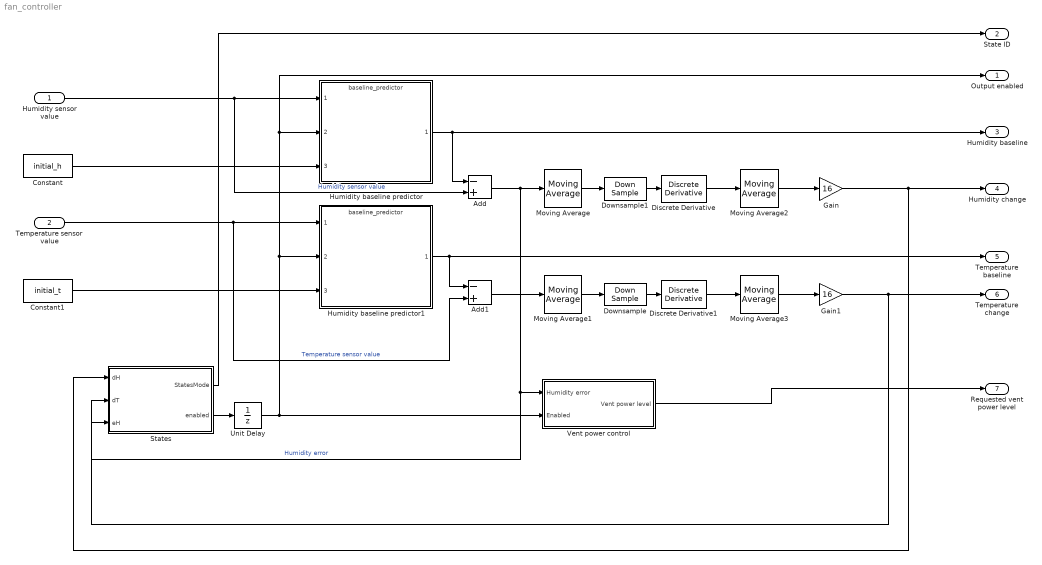
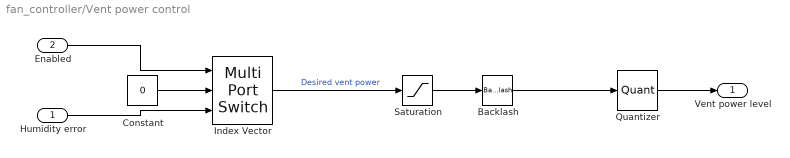
== stateflow chart fan_controller/States ==
  state Stopping
    entry: enabled=0
  state Detected
    entry: enabled=1
  state Stable
    entry: enabled=1
  state OFF
    entry: enabled=0
  Stopping -> OFF
  Detected -> OFF [order 1] : [dH <  -5]
  Stable -> Stopping : [eH < 8]
  (default) -> OFF
  Detected -> Stable [order 2] : [eH > 10]
  OFF -> Detected : [dH > 4]
  data: dH input; dT input; StatesMode output Enum: StatesModeType; enabled output; eH input

//
// Academic License - for use in teaching, academic research, and meeting
// course requirements at degree granting institutions only.  Not for
// government, commercial, or other organizational use.
//
// File: fan_controller.cpp
//
// Code generated for Simulink model 'fan_controller'.
//
// Model version                  : 1.7
// Simulink Coder version         : 9.3 (R2020a) 18-Nov-2019
// C/C++ source code generated on : Sun Nov 28 11:11:36 2021
//
// Target selection: ert.tlc
// Embedded hardware selection: Custom Processor->Custom Processor
// Code generation objectives: Unspecified
// Validation result: Not run
//
#include "fan_controller.h"
#include "fan_controller_private.h"
#include "rt_roundd_snf.h"

void fan_controllerModelClass::fan_controll_SystemCore_release
  (dsp_simulink_MovingAverage_fa_T *obj)
{
  g_dsp_private_SlidingWindowAv_T *obj_0;
  if ((obj->isInitialized == 1) && obj->isSetupComplete) {
    obj_0 = obj->pStatistic;
    if (obj_0->isInitialized == 1) {
      obj_0->isInitialized = 2;
    }

    obj->NumChannels = -1;
  }
}

void fan_controllerModelClass::fan_controlle_SystemCore_delete
  (dsp_simulink_MovingAverage_fa_T *obj)
{
  fan_controll_SystemCore_release(obj);
}

void fan_controllerModelClass::matlabCodegenHandle_matlabCodeg
  (dsp_simulink_MovingAverage_fa_T *obj)
{
  if (!obj->matlabCodegenIsDeleted) {
    obj->matlabCodegenIsDeleted = true;
    fan_controlle_SystemCore_delete(obj);
  }
}

//
// System initialize for atomic system:
//    synthesized block
//    synthesized block
//    synthesized block
//    synthesized block
//
void fan_controllerModelClass::fan_control_MovingAverage3_Init
  (DW_MovingAverage3_fan_control_T *localDW)
{
  // Start for MATLABSystem: '<Root>/Moving Average3'
  localDW->obj.matlabCodegenIsDeleted = false;
  localDW->objisempty = true;
  localDW->obj.isInitialized = 1;
  localDW->obj.NumChannels = 1;
  localDW->gobj_2.isInitialized = 0;
  localDW->obj.pStatistic = &localDW->gobj_2;
  localDW->obj.isSetupComplete = true;
  localDW->obj.TunablePropsChanged = false;

  // InitializeConditions for MATLABSystem: '<Root>/Moving Average3'
  if (localDW->obj.pStatistic->isInitialized == 1) {
    localDW->obj.pStatistic->pCumSum = 0.0;
    std::memset(&localDW->obj.pStatistic->pCumSumRev[0], 0, 15U * sizeof(real_T));
    localDW->obj.pStatistic->pCumRevIndex = 1.0;
  }

  // End of InitializeConditions for MATLABSystem: '<Root>/Moving Average3'
}

//
// Output and update for atomic system:
//    synthesized block
//    synthesized block
//    synthesized block
//    synthesized block
//
void fan_controllerModelClass::fan_controller_MovingAverage3(real_T rtu_0,
  B_MovingAverage3_fan_controll_T *localB, DW_MovingAverage3_fan_control_T
  *localDW)
{
  real_T cumRevIndex;
  real_T csum;
  real_T csumrev[15];
  real_T z;
  int32_T z_tmp;

  // MATLABSystem: '<Root>/Moving Average3'
  if (localDW->obj.TunablePropsChanged) {
    localDW->obj.TunablePropsChanged = false;
  }

  if (localDW->obj.pStatistic->isInitialized != 1) {
    localDW->obj.pStatistic->isSetupComplete = false;
    localDW->obj.pStatistic->isInitialized = 1;
    localDW->obj.pStatistic->pCumSum = 0.0;
    localDW->obj.pStatistic->pCumRevIndex = 1.0;
    localDW->obj.pStatistic->isSetupComplete = true;
    localDW->obj.pStatistic->pCumSum = 0.0;
    std::memset(&localDW->obj.pStatistic->pCumSumRev[0], 0, 15U * sizeof(real_T));
    localDW->obj.pStatistic->pCumRevIndex = 1.0;
  }

  cumRevIndex = localDW->obj.pStatistic->pCumRevIndex;
  csum = localDW->obj.pStatistic->pCumSum;
  for (z_tmp = 0; z_tmp < 15; z_tmp++) {
    csumrev[z_tmp] = localDW->obj.pStatistic->pCumSumRev[z_tmp];
  }

  csum += rtu_0;
  z_tmp = static_cast<int32_T>(cumRevIndex) - 1;
  z = csumrev[z_tmp] + csum;
  csumrev[z_tmp] = rtu_0;
  if (cumRevIndex != 15.0) {
    cumRevIndex++;
  } else {
    cumRevIndex = 1.0;
    csum = 0.0;
    for (z_tmp = 13; z_tmp >= 0; z_tmp--) {
      csumrev[z_tmp] += csumrev[z_tmp + 1];
    }
  }

  localDW->obj.pStatistic->pCumSum = csum;
  std::memcpy(&localDW->obj.pStatistic->pCumSumRev[0], &csumrev[0], 15U * sizeof
              (real_T));
  localDW->obj.pStatistic->pCumRevIndex = cumRevIndex;
  localB->MovingAverage3 = z / 16.0;

  // End of MATLABSystem: '<Root>/Moving Average3'
}

//
// Termination for atomic system:
//    synthesized block
//    synthesized block
//    synthesized block
//    synthesized block
//
void fan_controllerModelClass::fan_control_MovingAverage3_Term
  (DW_MovingAverage3_fan_control_T *localDW)
{
  // Terminate for MATLABSystem: '<Root>/Moving Average3'
  matlabCodegenHandle_matlabCodeg(&localDW->obj);
}

// Model step function
void fan_controllerModelClass::step()
{
  // local block i/o variables
  real_T rtb_Humidityerror;
  real_T rtb_Diff;
  real_T rtb_Add1;
  real_T rtb_Diff_l;
  real_T rtb_Desiredventpower;
  real_T rtb_TSamp;
  real_T rtb_Gain;
  real_T rtb_TSamp_g;
  int32_T rtb_enabled;

  // Outport: '<Root>/Output enabled' incorporates:
  //   UnitDelay: '<Root>/Unit Delay'

  fan_controller_Y.Outputenabled = fan_controller_DW.UnitDelay_DSTATE;

  // ModelReference: '<Root>/Humidity baseline predictor' incorporates:
  //   Constant: '<Root>/Constant'
  //   Inport: '<Root>/Humidity sensor value'
  //   Outport: '<Root>/Humidity baseline'
  //   UnitDelay: '<Root>/Unit Delay'

  Humidity_baseline_prMDLOBJ1.step(&fan_controller_U.Humiditysensorvalue,
    &fan_controller_DW.UnitDelay_DSTATE, &fan_controller_P.Constant_Value_f,
    &fan_controller_Y.Humiditybaseline);

  // Sum: '<Root>/Add' incorporates:
  //   Inport: '<Root>/Humidity sensor value'
  //   Outport: '<Root>/Humidity baseline'

  rtb_Humidityerror = fan_controller_U.Humiditysensorvalue -
    fan_controller_Y.Humiditybaseline;
  fan_controller_MovingAverage3(rtb_Humidityerror,
    &fan_controller_B.MovingAverage, &fan_controller_DW.MovingAverage);

  // DownSample: '<Root>/Downsample1'
  if (fan_controller_DW.Downsample1_Count == 0) {
    rtb_Desiredventpower = fan_controller_B.MovingAverage.MovingAverage3;
  } else {
    rtb_Desiredventpower = fan_controller_DW.Downsample1_Buffer;
  }

  // End of DownSample: '<Root>/Downsample1'

  // SampleTimeMath: '<S1>/TSamp'
  //
  //  About '<S1>/TSamp':
  //   y = u * K where K = 1 / ( w * Ts )
  //   Multiplication by K = weightedTsampQuantized is being
  //   done implicitly by changing the scaling of the input signal.
  //   No work needs to be done here.  Downstream blocks may need
  //   to do work to handle the scaling of the output; this happens
  //   automatically.

  rtb_TSamp = rtb_Desiredventpower;

  // Sum: '<S1>/Diff' incorporates:
  //   SampleTimeMath: '<S1>/TSamp'
  //   UnitDelay: '<S1>/UD'
  //
  //  About '<S1>/TSamp':
  //   y = u * K where K = 1 / ( w * Ts )
  //   Multiplication by K = weightedTsampQuantized is being
  //   done implicitly by changing the scaling of the input signal.
  //   No work needs to be done here.  Downstream blocks may need
  //   to do work to handle the scaling of the output; this happens
  //   automatically.
  //
  //  Block description for '<S1>/Diff':
  //
  //   Add in CPU
  //
  //  Block description for '<S1>/UD':
  //
  //   Store in Global RAM

  rtb_Diff = rtb_Desiredventpower - fan_controller_DW.UD_DSTATE;
  fan_controller_MovingAverage3(rtb_Diff, &fan_controller_B.MovingAverage2,
    &fan_controller_DW.MovingAverage2);

  // Gain: '<Root>/Gain'
  rtb_Gain = fan_controller_P.Gain_Gain *
    fan_controller_B.MovingAverage2.MovingAverage3;

  // Outport: '<Root>/Humidity change'
  fan_controller_Y.Humiditychange = rtb_Gain;

  // ModelReference: '<Root>/Humidity baseline predictor1' incorporates:
  //   Constant: '<Root>/Constant1'
  //   Inport: '<Root>/Temperature sensor value'
  //   Outport: '<Root>/Temperature baseline'
  //   UnitDelay: '<Root>/Unit Delay'

  Humidity_baseline_prMDLOBJ2.step(&fan_controller_U.Temperaturesensorvalue,
    &fan_controller_DW.UnitDelay_DSTATE, &fan_controller_P.Constant1_Value,
    &fan_controller_Y.Temperaturebaseline);

  // Sum: '<Root>/Add1' incorporates:
  //   Inport: '<Root>/Temperature sensor value'
  //   Outport: '<Root>/Temperature baseline'

  rtb_Add1 = fan_controller_U.Temperaturesensorvalue -
    fan_controller_Y.Temperaturebaseline;
  fan_controller_MovingAverage3(rtb_Add1, &fan_controller_B.MovingAverage1,
    &fan_controller_DW.MovingAverage1);

  // DownSample: '<Root>/Downsample'
  if (fan_controller_DW.Downsample_Count == 0) {
    rtb_Desiredventpower = fan_controller_B.MovingAverage1.MovingAverage3;
  } else {
    rtb_Desiredventpower = fan_controller_DW.Downsample_Buffer;
  }

  // End of DownSample: '<Root>/Downsample'

  // SampleTimeMath: '<S2>/TSamp'
  //
  //  About '<S2>/TSamp':
  //   y = u * K where K = 1 / ( w * Ts )
  //   Multiplication by K = weightedTsampQuantized is being
  //   done implicitly by changing the scaling of the input signal.
  //   No work needs to be done here.  Downstream blocks may need
  //   to do work to handle the scaling of the output; this happens
  //   automatically.

  rtb_TSamp_g = rtb_Desiredventpower;

  // Sum: '<S2>/Diff' incorporates:
  //   SampleTimeMath: '<S2>/TSamp'
  //   UnitDelay: '<S2>/UD'
  //
  //  About '<S2>/TSamp':
  //   y = u * K where K = 1 / ( w * Ts )
  //   Multiplication by K = weightedTsampQuantized is being
  //   done implicitly by changing the scaling of the input signal.
  //   No work needs to be done here.  Downstream blocks may need
  //   to do work to handle the scaling of the output; this happens
  //   automatically.
  //
  //  Block description for '<S2>/Diff':
  //
  //   Add in CPU
  //
  //  Block description for '<S2>/UD':
  //
  //   Store in Global RAM

  rtb_Diff_l = rtb_Desiredventpower - fan_controller_DW.UD_DSTATE_l;
  fan_controller_MovingAverage3(rtb_Diff_l, &fan_controller_B.MovingAverage3,
    &fan_controller_DW.MovingAverage3);

  // Chart: '<Root>/States' incorporates:
  //   Outport: '<Root>/State ID'

  if (fan_controller_DW.is_active_c3_fan_controller == 0U) {
    fan_controller_DW.is_active_c3_fan_controller = 1U;

    // Outport: '<Root>/State ID'
    fan_controller_Y.StateID = StatesModeType_OFF;
    rtb_enabled = 0;
  } else {
    switch (fan_controller_Y.StateID) {
     case StatesModeType_OFF:
      rtb_enabled = 0;
      if (rtb_Gain > 4.0) {
        fan_controller_Y.StateID = StatesModeType_Detected;
        rtb_enabled = 1;
      }
      break;

     case StatesModeType_Detected:
      rtb_enabled = 1;
      if (rtb_Gain < -5.0) {
        fan_controller_Y.StateID = StatesModeType_OFF;
        rtb_enabled = 0;
      } else {
        if (rtb_Humidityerror > 10.0) {
          fan_controller_Y.StateID = StatesModeType_Stable;
        }
      }
      break;

     case StatesModeType_Stable:
      rtb_enabled = 1;
      if (rtb_Humidityerror < 8.0) {
        fan_controller_Y.StateID = StatesModeType_Stopping;
        rtb_enabled = 0;
      }
      break;

     default:
      // State Stopping
      fan_controller_Y.StateID = StatesModeType_OFF;
      rtb_enabled = 0;
      break;
    }
  }

  // End of Chart: '<Root>/States'

  // Outport: '<Root>/Temperature change' incorporates:
  //   Gain: '<Root>/Gain1'

  fan_controller_Y.Temperaturechange = fan_controller_P.Gain1_Gain *
    fan_controller_B.MovingAverage3.MovingAverage3;

  // MultiPortSwitch: '<S4>/Index Vector' incorporates:
  //   Constant: '<S4>/Constant'
  //   UnitDelay: '<Root>/Unit Delay'

  if (static_cast<int32_T>(fan_controller_DW.UnitDelay_DSTATE) == 0) {
    rtb_Desiredventpower = fan_controller_P.Constant_Value;
  } else {
    rtb_Desiredventpower = rtb_Humidityerror;
  }

  // End of MultiPortSwitch: '<S4>/Index Vector'

  // Saturate: '<S4>/Saturation'
  if (rtb_Desiredventpower > fan_controller_P.Saturation_UpperSat) {
    rtb_Desiredventpower = fan_controller_P.Saturation_UpperSat;
  } else {
    if (rtb_Desiredventpower < fan_controller_P.Saturation_LowerSat) {
      rtb_Desiredventpower = fan_controller_P.Saturation_LowerSat;
    }
  }

  // End of Saturate: '<S4>/Saturation'

  // Backlash: '<S4>/Backlash'
  rtb_Gain = fan_controller_P.Backlash_BacklashWidth / 2.0;
  if (rtb_Desiredventpower < fan_controller_DW.PrevY - rtb_Gain) {
    fan_controller_B.Backlash = rtb_Desiredventpower + rtb_Gain;
  } else if (rtb_Desiredventpower <= fan_controller_DW.PrevY + rtb_Gain) {
    fan_controller_B.Backlash = fan_controller_DW.PrevY;
  } else {
    fan_controller_B.Backlash = rtb_Desiredventpower - rtb_Gain;
  }

  // End of Backlash: '<S4>/Backlash'

  // Outport: '<Root>/Requested vent power level' incorporates:
  //   Quantizer: '<S4>/Quantizer'

  fan_controller_Y.Requestedventpowerlevel = rt_roundd_snf
    (fan_controller_B.Backlash / fan_controller_P.Quantizer_Interval) *
    fan_controller_P.Quantizer_Interval;

  // Update for UnitDelay: '<Root>/Unit Delay'
  fan_controller_DW.UnitDelay_DSTATE = rtb_enabled;

  // Update for DownSample: '<Root>/Downsample1'
  if (fan_controller_DW.Downsample1_Count == 0) {
    fan_controller_DW.Downsample1_Buffer =
      fan_controller_B.MovingAverage.MovingAverage3;
  }

  fan_controller_DW.Downsample1_Count++;
  if (fan_controller_DW.Downsample1_Count == 16) {
    fan_controller_DW.Downsample1_Count = 0;
  }

  // End of Update for DownSample: '<Root>/Downsample1'

  // Update for UnitDelay: '<S1>/UD'
  //
  //  Block description for '<S1>/UD':
  //
  //   Store in Global RAM

  fan_controller_DW.UD_DSTATE = rtb_TSamp;

  // Update for DownSample: '<Root>/Downsample'
  if (fan_controller_DW.Downsample_Count == 0) {
    fan_controller_DW.Downsample_Buffer =
      fan_controller_B.MovingAverage1.MovingAverage3;
  }

  fan_controller_DW.Downsample_Count++;
  if (fan_controller_DW.Downsample_Count == 16) {
    fan_controller_DW.Downsample_Count = 0;
  }

  // End of Update for DownSample: '<Root>/Downsample'

  // Update for UnitDelay: '<S2>/UD'
  //
  //  Block description for '<S2>/UD':
  //
  //   Store in Global RAM

  fan_controller_DW.UD_DSTATE_l = rtb_TSamp_g;

  // Update for Backlash: '<S4>/Backlash'
  fan_controller_DW.PrevY = fan_controller_B.Backlash;
}
